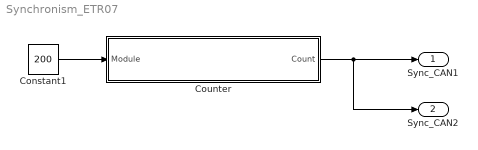
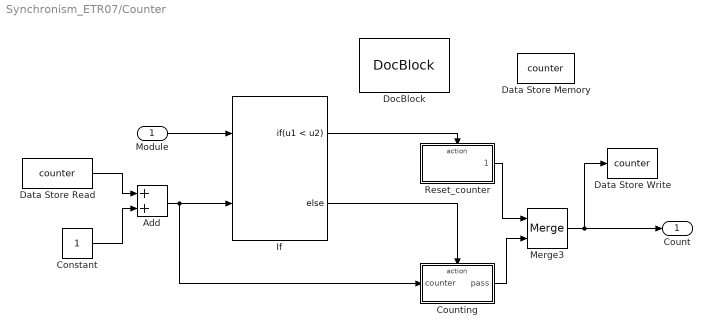
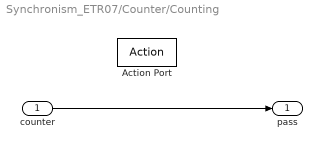
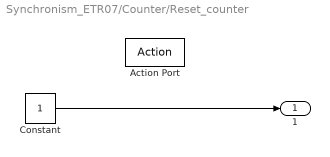
/*
 * Synchronism_ETR07.c
 *
 * Academic License - for use in teaching, academic research, and meeting
 * course requirements at degree granting institutions only.  Not for
 * government, commercial, or other organizational use.
 *
 * Code generation for model "Synchronism_ETR07".
 *
 * Model version              : 1.4
 * Simulink Coder version : 8.13 (R2017b) 24-Jul-2017
 * C source code generated on : Tue Apr 12 15:35:12 2022
 *
 * Target selection: irt.tlc
 * Note: GRT includes extra infrastructure and instrumentation for prototyping
 * Embedded hardware selection: Intel->x86-64 (Windows64)
 * Code generation objectives: Unspecified
 * Validation result: Not run
 */

#include "Synchronism_ETR07.h"
#include "Synchronism_ETR07_private.h"

/* Block states (auto storage) */
DW_Synchronism_ETR07_T Synchronism_ETR07_DW;

/* External outputs (root outports fed by signals with auto storage) */
ExtY_Synchronism_ETR07_T Synchronism_ETR07_Y;

/* Real-time model */
RT_MODEL_Synchronism_ETR07_T Synchronism_ETR07_M_;
RT_MODEL_Synchronism_ETR07_T *const Synchronism_ETR07_M = &Synchronism_ETR07_M_;

/* Model output function */
static void Synchronism_ETR07_output(void)
{
  real_T rtb_Add;

  /* Sum: '<S1>/Add' incorporates:
   *  Constant: '<S1>/Constant'
   *  DataStoreRead: '<S1>/Data Store Read'
   */
  rtb_Add = Synchronism_ETR07_DW.counter + Synchronism_ETR07_P.Constant_Value_e;

  /* If: '<S1>/If' incorporates:
   *  Constant: '<Root>/Constant1'
   */
  if (Synchronism_ETR07_P.Constant1_Value < rtb_Add) {
    /* Outputs for IfAction SubSystem: '<S1>/Reset_counter' incorporates:
     *  ActionPort: '<S4>/Action Port'
     */
    /* SignalConversion: '<S4>/OutportBufferFor1' incorporates:
     *  Constant: '<S4>/Constant'
     */
    rtb_Add = Synchronism_ETR07_P.Constant_Value;

    /* End of Outputs for SubSystem: '<S1>/Reset_counter' */
  }

  /* End of If: '<S1>/If' */

  /* DataStoreWrite: '<S1>/Data Store Write' */
  Synchronism_ETR07_DW.counter = rtb_Add;

  /* Outport: '<Root>/Sync_CAN1' */
  Synchronism_ETR07_Y.Sync_CAN1 = rtb_Add;

  /* Outport: '<Root>/Sync_CAN2' */
  Synchronism_ETR07_Y.Sync_CAN2 = rtb_Add;
}

/* Model update function */
static void Synchronism_ETR07_update(void)
{
  /* Update absolute time for base rate */
  /* The "clockTick0" counts the number of times the code of this task has
   * been executed. The absolute time is the multiplication of "clockTick0"
   * and "Timing.stepSize0". Size of "clockTick0" ensures timer will not
   * overflow during the application lifespan selected.
   * Timer of this task consists of two 32 bit unsigned integers.
   * The two integers represent the low bits Timing.clockTick0 and the high bits
   * Timing.clockTickH0. When the low bit overflows to 0, the high bits increment.
   */
  if (!(++Synchronism_ETR07_M->Timing.clockTick0)) {
    ++Synchronism_ETR07_M->Timing.clockTickH0;
  }

  Synchronism_ETR07_M->Timing.t[0] = Synchronism_ETR07_M->Timing.clockTick0 *
    Synchronism_ETR07_M->Timing.stepSize0 +
    Synchronism_ETR07_M->Timing.clockTickH0 *
    Synchronism_ETR07_M->Timing.stepSize0 * 4294967296.0;
}
